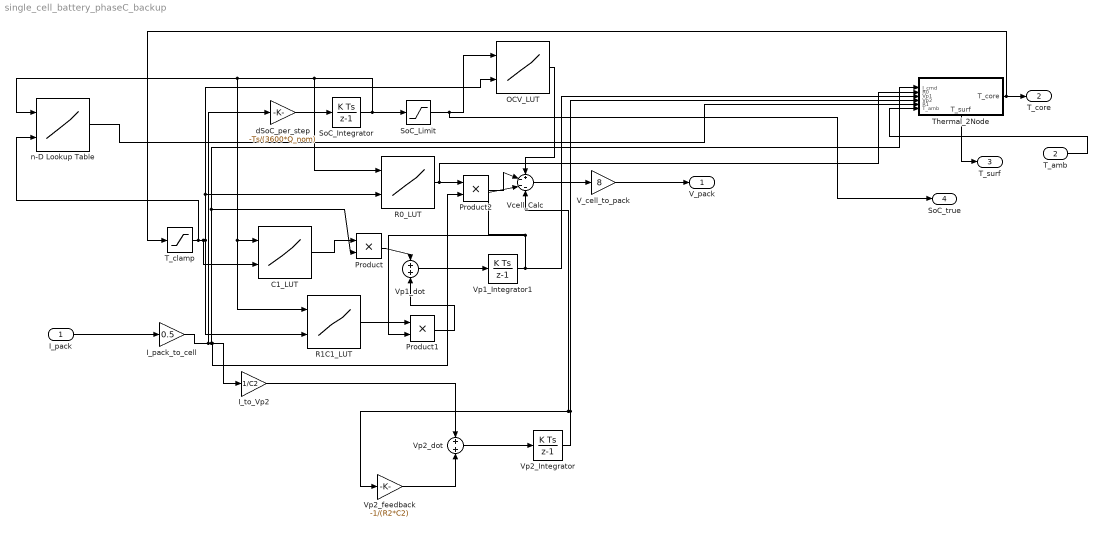
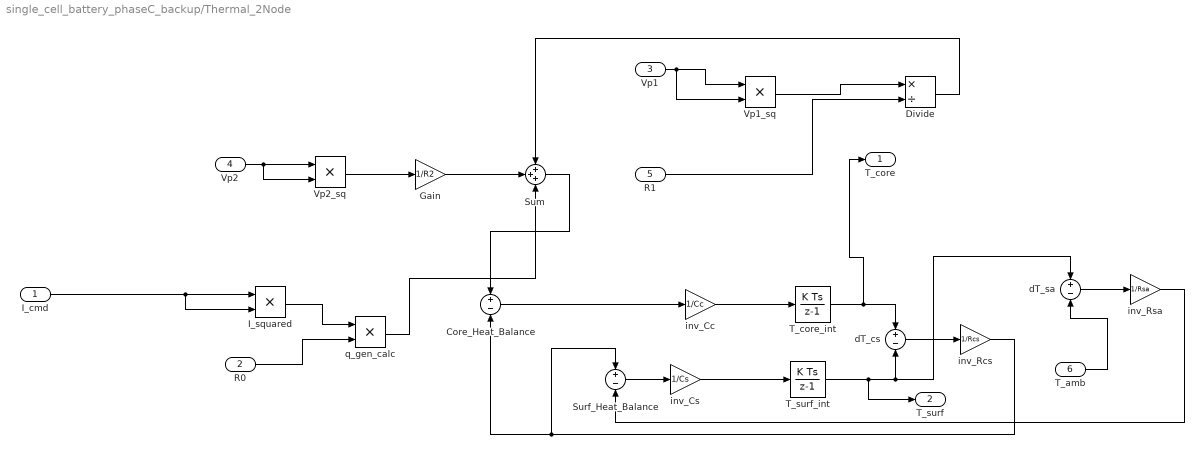
/*
 * Academic License - for use in teaching, academic research, and meeting
 * course requirements at degree granting institutions only.  Not for
 * government, commercial, or other organizational use.
 *
 * File: single_cell_battery_phaseC_backup.c
 *
 * Code generated for Simulink model 'single_cell_battery_phaseC_backup'.
 *
 * Model version                  : 1.60
 * Simulink Coder version         : 25.2 (R2025b) 28-Jul-2025
 * C/C++ source code generated on : Wed Apr 15 19:56:24 2026
 *
 * Target selection: ert.tlc
 * Embedded hardware selection: Custom Processor->Custom Processor
 * Emulation hardware selection:
 *    Differs from embedded hardware (Custom Processor->MATLAB Host Computer)
 * Code generation objectives:
 *    1. Execution efficiency
 *    2. ROM efficiency
 * Validation result: All passed
 */

#include "single_cell_battery_phaseC_backup.h"
#include "rtwtypes.h"
#include "look2_iflf_binlc.h"
#include "look2_iflf_pbinlc.h"
#include "single_cell_battery_phaseC_backup_private.h"

/* Model step function */
void single_cell_battery_phaseC_backup_step(RT_MODEL_single_cell_battery__T *
  const single_cell_battery_phaseC_b_M, real32_T
  single_cell_battery_phaseC_ba_U_I_pack, real32_T
  single_cell_battery_phaseC_ba_U_T_amb, real32_T
  *single_cell_battery_phaseC_ba_Y_V_pack, real32_T
  *single_cell_battery_phaseC_ba_Y_T_core, real32_T
  *single_cell_battery_phaseC_ba_Y_T_surf, real32_T
  *single_cell_battery_phaseC_ba_Y_SoC_true)
{
  DW_single_cell_battery_phaseC_T *single_cell_battery_phaseC_b_DW =
    single_cell_battery_phaseC_b_M->dwork;
  real32_T rtb_C1_LUT;
  real32_T rtb_I_pack_to_cell;
  real32_T rtb_Product1;
  real32_T rtb_R1C1_LUT;
  real32_T rtb_SoC_Limit;
  real32_T rtb_T_surf_int;
  real32_T rtb_q_gen_calc;

  /* Saturate: '<Root>/ T_clamp' incorporates:
   *  DiscreteIntegrator: '<S1>/T_core_int'
   */
  if (single_cell_battery_phaseC_b_DW->T_core_int_DSTATE > 25.0F) {
    rtb_C1_LUT = 25.0F;
  } else if (single_cell_battery_phaseC_b_DW->T_core_int_DSTATE < 0.0F) {
    rtb_C1_LUT = 0.0F;
  } else {
    rtb_C1_LUT = single_cell_battery_phaseC_b_DW->T_core_int_DSTATE;
  }

  /* End of Saturate: '<Root>/ T_clamp' */

  /* Lookup_n-D: '<Root>/R0_LUT' incorporates:
   *  DiscreteIntegrator: '<Root>/SoC_Integrator'
   *  Lookup_n-D: '<Root>/C1_LUT'
   *  Lookup_n-D: '<Root>/R1C1_LUT'
   */
  rtb_R1C1_LUT = look2_iflf_binlc
    (single_cell_battery_phaseC_b_DW->SoC_Integrator_DSTATE, rtb_C1_LUT,
     rtCP_R0_LUT_bp01Data, rtCP_R0_LUT_bp02Data, rtCP_R0_LUT_tableData,
     rtCP_R0_LUT_maxIndex, 12U);

  /* Gain: '<Root>/I_pack_to_cell' incorporates:
   *  Inport: '<Root>/I_pack'
   */
  rtb_I_pack_to_cell = 0.5F * single_cell_battery_phaseC_ba_U_I_pack;

  /* Saturate: '<Root>/SoC_Limit' incorporates:
   *  DiscreteIntegrator: '<Root>/SoC_Integrator'
   */
  if (single_cell_battery_phaseC_b_DW->SoC_Integrator_DSTATE > 1.0F) {
    rtb_SoC_Limit = 1.0F;
  } else if (single_cell_battery_phaseC_b_DW->SoC_Integrator_DSTATE < 0.0F) {
    rtb_SoC_Limit = 0.0F;
  } else {
    rtb_SoC_Limit = single_cell_battery_phaseC_b_DW->SoC_Integrator_DSTATE;
  }

  /* End of Saturate: '<Root>/SoC_Limit' */

  /* Lookup_n-D: '<Root>/OCV_LUT' incorporates:
   *  DiscreteIntegrator: '<S1>/T_surf_int'
   *  Lookup_n-D: '<Root>/C1_LUT'
   *  Saturate: '<Root>/SoC_Limit'
   */
  rtb_T_surf_int = look2_iflf_pbinlc(rtb_SoC_Limit, rtb_C1_LUT,
    rtCP_OCV_LUT_bp01Data, rtCP_OCV_LUT_bp02Data, rtCP_OCV_LUT_tableData,
    single_cell_battery_phaseC_b_DW->m_bpIndex, rtCP_OCV_LUT_maxIndex, 101U);

  /* Outport: '<Root>/V_pack' incorporates:
   *  DiscreteIntegrator: '<Root>/Vp1_Integrator1'
   *  DiscreteIntegrator: '<Root>/Vp2_Integrator'
   *  DiscreteIntegrator: '<S1>/T_surf_int'
   *  Gain: '<Root>/V_cell_to_pack'
   *  Lookup_n-D: '<Root>/R1C1_LUT'
   *  Product: '<Root>/Product2'
   *  Sum: '<Root>/Vcell_Calc'
   */
  *single_cell_battery_phaseC_ba_Y_V_pack = (((rtb_T_surf_int - rtb_R1C1_LUT *
    rtb_I_pack_to_cell) -
    single_cell_battery_phaseC_b_DW->Vp1_Integrator1_DSTATE) -
    single_cell_battery_phaseC_b_DW->Vp2_Integrator_DSTATE) * 8.0F;

  /* Product: '<S1>/Divide' incorporates:
   *  DiscreteIntegrator: '<Root>/SoC_Integrator'
   *  DiscreteIntegrator: '<Root>/Vp1_Integrator1'
   *  Lookup_n-D: '<Root>/C1_LUT'
   *  Lookup_n-D: '<Root>/n-D Lookup Table'
   *  Product: '<S1>/Vp1_sq'
   */
  rtb_T_surf_int = single_cell_battery_phaseC_b_DW->Vp1_Integrator1_DSTATE *
    single_cell_battery_phaseC_b_DW->Vp1_Integrator1_DSTATE / look2_iflf_binlc
    (single_cell_battery_phaseC_b_DW->SoC_Integrator_DSTATE, rtb_C1_LUT,
     rtCP_nDLookupTable_bp01Data, rtCP_nDLookupTable_bp02Data,
     rtCP_nDLookupTable_tableData, rtCP_nDLookupTable_maxIndex, 12U);

  /* Product: '<S1>/q_gen_calc' incorporates:
   *  Lookup_n-D: '<Root>/R1C1_LUT'
   *  Product: '<S1>/I_squared'
   */
  rtb_q_gen_calc = rtb_I_pack_to_cell * rtb_I_pack_to_cell * rtb_R1C1_LUT;

  /* Sum: '<S1>/dT_cs' incorporates:
   *  DiscreteIntegrator: '<S1>/T_core_int'
   *  DiscreteIntegrator: '<S1>/T_surf_int'
   */
  rtb_R1C1_LUT = single_cell_battery_phaseC_b_DW->T_core_int_DSTATE -
    single_cell_battery_phaseC_b_DW->T_surf_int_DSTATE;

  /* Outport: '<Root>/T_surf' incorporates:
   *  DiscreteIntegrator: '<S1>/T_surf_int'
   */
  *single_cell_battery_phaseC_ba_Y_T_surf =
    single_cell_battery_phaseC_b_DW->T_surf_int_DSTATE;

  /* Product: '<Root>/Product1' incorporates:
   *  DiscreteIntegrator: '<Root>/SoC_Integrator'
   *  DiscreteIntegrator: '<Root>/Vp1_Integrator1'
   *  Lookup_n-D: '<Root>/C1_LUT'
   *  Lookup_n-D: '<Root>/R1C1_LUT'
   */
  rtb_Product1 = look2_iflf_binlc
    (single_cell_battery_phaseC_b_DW->SoC_Integrator_DSTATE, rtb_C1_LUT,
     rtCP_R1C1_LUT_bp01Data, rtCP_R1C1_LUT_bp02Data, rtCP_R1C1_LUT_tableData,
     rtCP_R1C1_LUT_maxIndex, 12U) *
    single_cell_battery_phaseC_b_DW->Vp1_Integrator1_DSTATE;

  /* Product: '<Root>/Product' incorporates:
   *  DiscreteIntegrator: '<Root>/SoC_Integrator'
   *  Lookup_n-D: '<Root>/C1_LUT'
   */
  rtb_C1_LUT = look2_iflf_binlc
    (single_cell_battery_phaseC_b_DW->SoC_Integrator_DSTATE, rtb_C1_LUT,
     rtCP_C1_LUT_bp01Data, rtCP_C1_LUT_bp02Data, rtCP_C1_LUT_tableData,
     rtCP_C1_LUT_maxIndex, 12U) * rtb_I_pack_to_cell;

  /* Outport: '<Root>/SoC_true' */
  *single_cell_battery_phaseC_ba_Y_SoC_true = rtb_SoC_Limit;

  /* Outport: '<Root>/T_core' incorporates:
   *  DiscreteIntegrator: '<S1>/T_core_int'
   */
  *single_cell_battery_phaseC_ba_Y_T_core =
    single_cell_battery_phaseC_b_DW->T_core_int_DSTATE;

  /* Update for DiscreteIntegrator: '<Root>/SoC_Integrator' incorporates:
   *  Gain: '<Root>/dSoC_per_step'
   */
  single_cell_battery_phaseC_b_DW->SoC_Integrator_DSTATE += -9.27471683E-6F *
    rtb_I_pack_to_cell * 0.1F;

  /* Update for DiscreteIntegrator: '<S1>/T_core_int' incorporates:
   *  DiscreteIntegrator: '<Root>/Vp2_Integrator'
   *  Gain: '<S1>/Gain'
   *  Gain: '<S1>/inv_Cc'
   *  Product: '<S1>/Vp2_sq'
   *  Sum: '<S1>/Core_Heat_Balance'
   *  Sum: '<S1>/Sum'
   */
  single_cell_battery_phaseC_b_DW->T_core_int_DSTATE +=
    (((single_cell_battery_phaseC_b_DW->Vp2_Integrator_DSTATE *
       single_cell_battery_phaseC_b_DW->Vp2_Integrator_DSTATE * 100.0F +
       rtb_T_surf_int) + rtb_q_gen_calc) - rtb_R1C1_LUT) * 0.0025F * 0.1F;

  /* Update for DiscreteIntegrator: '<Root>/Vp1_Integrator1' incorporates:
   *  Sum: '<Root>/Vp1_dot'
   */
  single_cell_battery_phaseC_b_DW->Vp1_Integrator1_DSTATE += (rtb_C1_LUT +
    rtb_Product1) * 0.1F;

  /* Update for DiscreteIntegrator: '<Root>/Vp2_Integrator' incorporates:
   *  Gain: '<Root>/I_to_Vp2'
   *  Gain: '<Root>/Vp2_feedback'
   *  Sum: '<Root>/Vp2_dot'
   */
  single_cell_battery_phaseC_b_DW->Vp2_Integrator_DSTATE += (0.000125F *
    rtb_I_pack_to_cell + -0.0125F *
    single_cell_battery_phaseC_b_DW->Vp2_Integrator_DSTATE) * 0.1F;

  /* Update for DiscreteIntegrator: '<S1>/T_surf_int' incorporates:
   *  Gain: '<S1>/inv_Cs'
   *  Gain: '<S1>/inv_Rsa'
   *  Inport: '<Root>/T_amb'
   *  Sum: '<S1>/Surf_Heat_Balance'
   *  Sum: '<S1>/dT_sa'
   */
  single_cell_battery_phaseC_b_DW->T_surf_int_DSTATE += (rtb_R1C1_LUT -
    (single_cell_battery_phaseC_b_DW->T_surf_int_DSTATE -
     single_cell_battery_phaseC_ba_U_T_amb) * 0.333333343F) * 0.01F * 0.1F;
}
